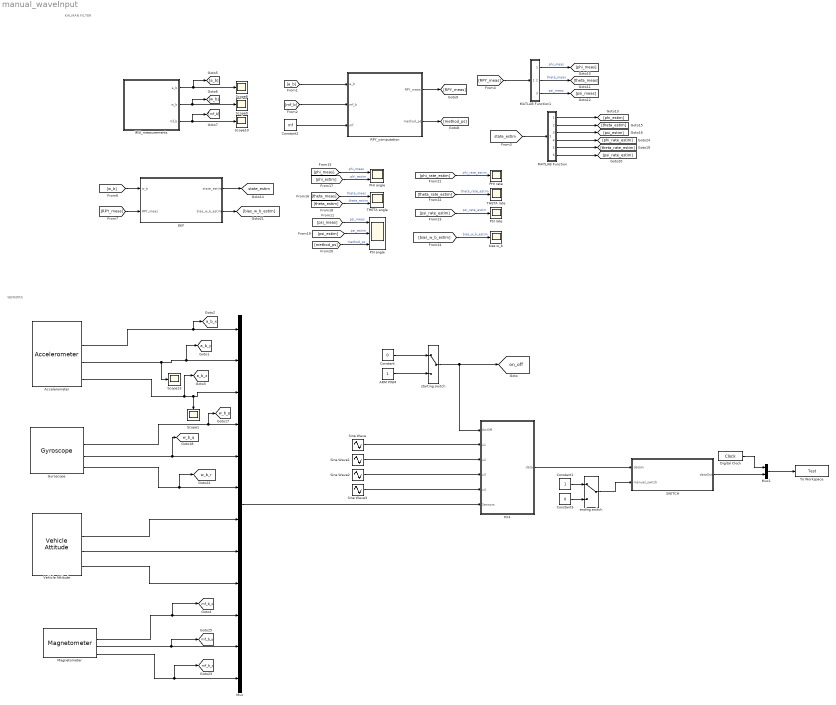
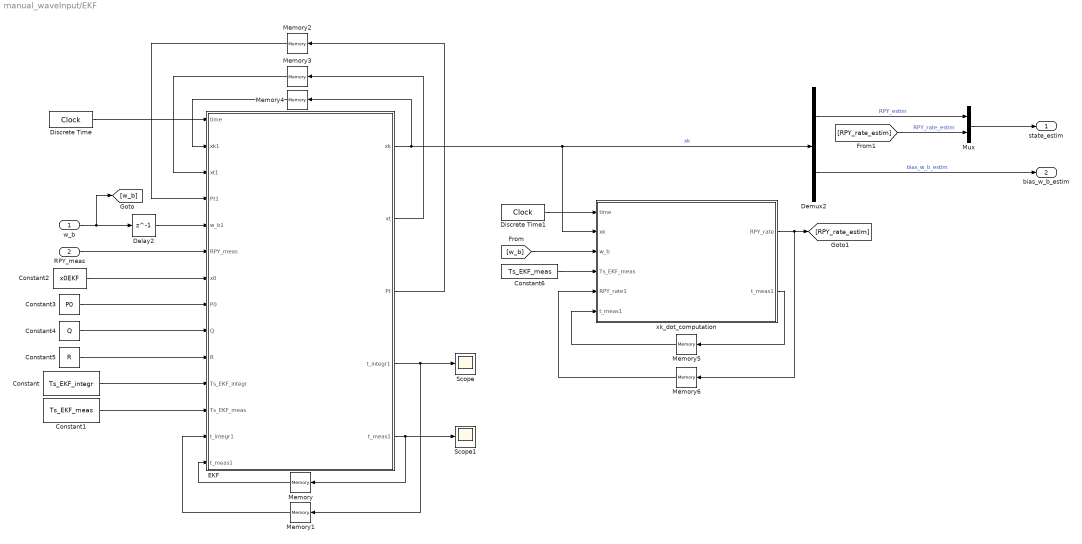
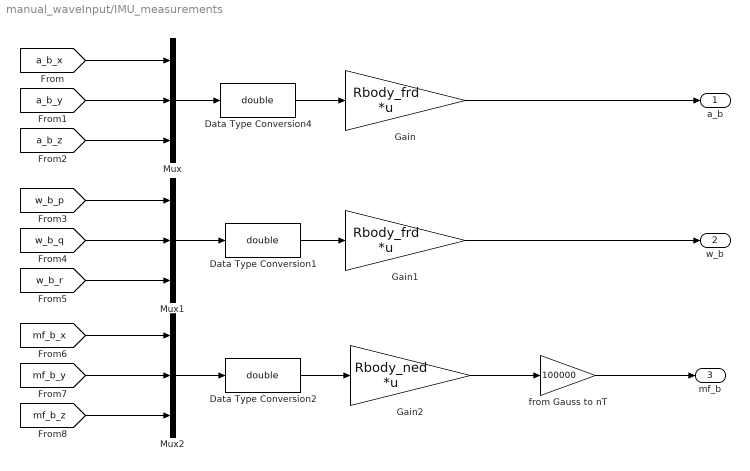
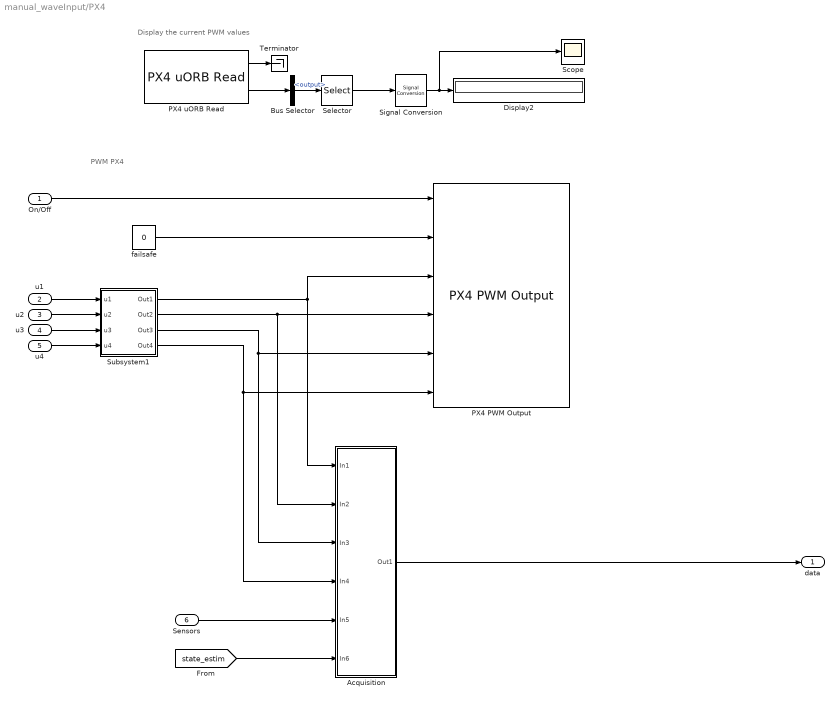
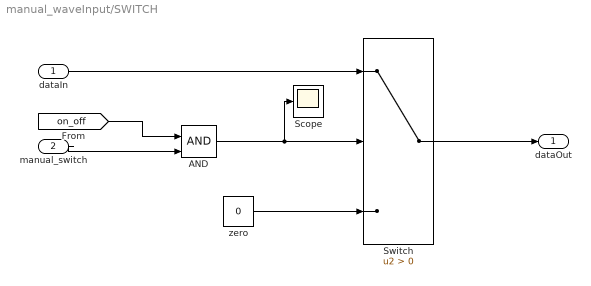
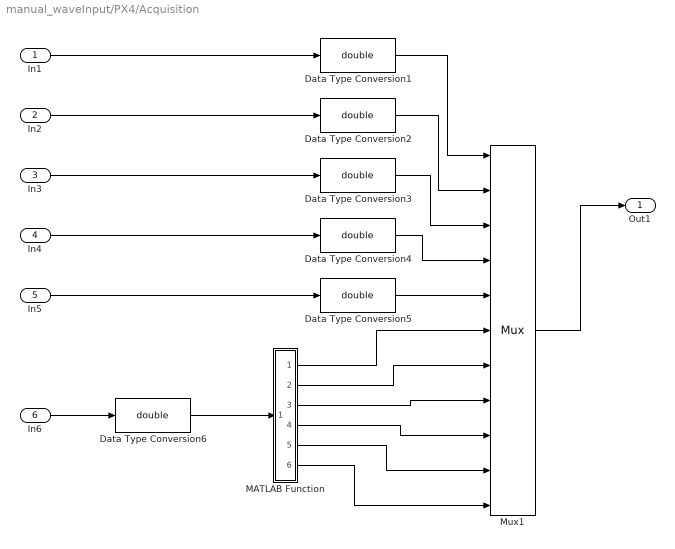
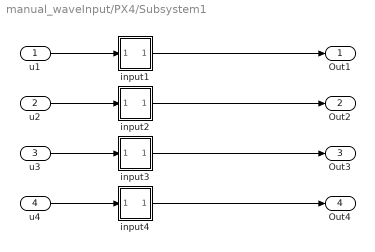
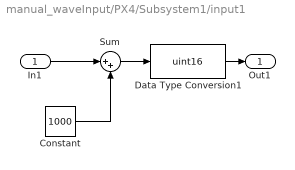
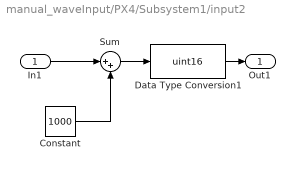
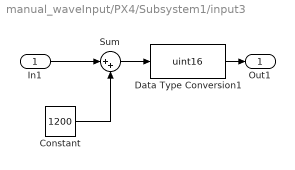
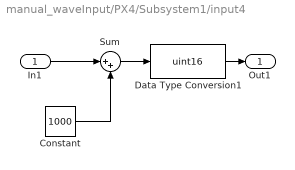
== matlab function manual_waveInput/MATLAB Function1 ==
function [y1,y2,y3] = fcn(u)

y1 = u(1);
y2 = u(2);
y3 = u(3);

== matlab function manual_waveInput/MATLAB Function ==
function [y1,y2,y3,y4,y5,y6] = fcn(u)

y1 = u(1);
y2 = u(2);
y3 = u(3);
y4 = u(4);
y5 = u(5);
y6 = u(6);

== matlab function manual_waveInput/PX4/Acquisition/MATLAB Function ==
function [y1,y2,y3,y4,y5,y6] = fcn(u)

y1 = u(1);
y2 = u(2);
y3 = u(3);
y4 = u(4);
y5 = u(5);
y6 = u(6);

== matlab function manual_waveInput/RPY_computation ==
function [RPY_meas,method_ps]   = RPY_computation(a_b,mf_b,mf)
% description:
% - a_b             = measured linear acceleration in body-frame
% - w_b             = measured angular velocity in body-frame
% - mf_b            = measured magnetic field in body-frame
% - mf              = measured magnetic field in body-inertia
% - a_b_disturbe    = linear velocity measurement-noise
% - w_b_disturbe    = angular velocity measurement-noise
% - mf_b_disturbe   = magnetic field measurement-noise

% -------------------------------------------------------------------------------------------
% observation: the following computation works only if the angles
% phi,theta,psy are withing angles (-pi/2,+pi/2) (this is an open set, pi/2 is excluded)
% -------------------------------------------------------------------------------------------

a_b = -1*a_b;       % need to adjust the sign to use atan2() function correctly
mf_u = mf(3,1);     % magnetic field in up direction (z-dir in inertia frame)

% phi computation
ph_meas = atan2(a_b(2), a_b(3));
sph = sin(ph_meas);
cph = cos(ph_meas);

% theta computation
th_meas = atan2(-a_b(1), (a_b(2)*sph + a_b(3)*cph));
sth = sin(th_meas);
cth = cos(th_meas);

% psi computation
if abs(sin(th_meas)) > 0.1  % sin(th) != 0 
    method_ps = 1;
    ps_meas_numerator   = (sth*cph*mf_b(2) - sth*sph*mf_b(3))/(-sth);       % don't modify
    ps_meas_denominator = (-sph*mf_b(2) - cph*mf_b(3) + cth*mf_u)/(-sth);   % don't modify
    ps_meas = atan2(ps_meas_numerator, ps_meas_denominator);
else                        % sin(th) == 0
    method_ps = 2;
    ps_meas_numerator   = (mf_b(2) - cth*sph*mf_u)*(-cth);
    ps_meas_denominator = cph*mf_b(1);
    ps_meas = atan2(ps_meas_numerator, ps_meas_denominator);
end
RPY_meas = [ph_meas;th_meas;ps_meas];

== matlab function manual_waveInput/EKF/EKF ==
function [xk,xt,Pt,t_integr1,t_meas1] = EKF(time,xk1,xt1,Pt1,w_b1,RPY_meas,x0,P0,Q,R,Ts_EKF_integr,Ts_EKF_meas,t_integr1,t_meas1)

if time == 0
    xk = x0;
    xt = x0;
    Pt = P0;
    t_integr1 = 0;
    t_meas1 = 0;
elseif time - t_integr1 >= Ts_EKF_integr
    wp          =       w_b1(1,1);        % p-dir of angular velocity w
    wq          =       w_b1(2,1);        % q-dir of angular velocity w
    wr          =       w_b1(3,1);        % r-dir of angular velocity w

    phi         =       xt1(1,1);         %  roll angle (rad)
    theta       =       xt1(2,1);         %  pitch angle (rad)
    psi         =       xt1(3,1);         %  yaw angle (rad)  
    bias_wp     =       xt1(4,1);         % bias of p-dir of angular velocity w
    bias_wq     =       xt1(5,1);         % bias of q-dir of angular velocity w
    bias_wr     =       xt1(6,1);         % bias of r-dir of angular velocity w

    cph         =       cos(phi);
    cth         =       cos(theta);
    cps         =       cos(psi);
    sph         =       sin(phi);
    sth         =       sin(theta);
    sps         =       sin(psi);
    tth         =       sth/cth;

    % integration step
    t_integr1 = time;
    Mf = [1,    sph*tth,    cph*tth,    0,  0,  0;
          0,    cph,        -sph,       0,  0,  0;
          0,    sph/cth,    cph/cth,    0,  0,  0;
          0,    0,          0,          1,  0,  0;
          0,    0,          0,          0,  1,  0;
          0,    0,          0,          0,  0,  1;];
    Z1 = [wp-bias_wp; wq-bias_wq; wr-bias_wr; bias_wp; bias_wq; bias_wr;];
    f = Mf*Z1;
    xt = xt1 + Ts_EKF_integr*f;

    A1 = [cph*tth*(wq-bias_wq)-sph*tth*(wr-bias_wr),(sph*(wq-bias_wq)+cph*(wr-bias_wr))/cth^2,  0,  -1, -sph*tth,   -cph*tth;];
    A2 = [-sph*(wq-bias_wq)-cph*(wr-bias_wr),   0,  0,  0,  -cph,   sph;];
    A3 = [cph*(wq-bias_wq)/cth-sph*(wr-bias_wr)/cth, (sth/cth^2)*(sph*(wq-bias_wq)+cph*(wr-bias_wr)),   0,  0,  -sph/cth,   -cph/cth;];
    A4 = [0,    0,  0,  1,  0,  0;];
    A5 = [0,    0,  0,  0,  1,  0;];
    A6 = [0,    0,  0,  0,  0,  1;];
    At1 = [A1; A2; A3; A4; A5; A6;];
    Pt = Pt1 + Ts_EKF_integr*(At1*Pt1 + Pt1*At1' + Q);

    % measurement step
    if time - t_meas1 >= Ts_EKF_meas
        t_meas1 = time;
        Ck = [eye(3),zeros(3,3)];
        Lk = Pt*Ck'/(Ck*Pt*Ck' + R);
        xk = xt + Lk*(RPY_meas - Ck*xt);
        Pk = (eye(6) - Lk*Ck)*Pt;

        xt = xk;    % becomes the new xt1
        Pt = Pk;    % becomes the new Pt1
    else
        xk = xk1;    % xk1
    end
else
    xk = xt1;
    xt = xt1;
    Pt = Pt1;
end
end

== matlab function manual_waveInput/EKF/xk_dot_computation ==
function [RPY_rate,t_meas1] = xk_dot_computation(time,xk,w_b,Ts_EKF_meas,RPY_rate1,t_meas1)
RPY_rate = zeros(3,1);
if time == 0
    t_meas1 = 0;
end
if time - t_meas1 >= Ts_EKF_meas || time == 0
    wp          =       w_b(1,1);        % p-dir of angular velocity w
    wq          =       w_b(2,1);        % q-dir of angular velocity w
    wr          =       w_b(3,1);        % r-dir of angular velocity w

    phi         =       xk(1,1);         %  roll angle (rad)
    theta       =       xk(2,1);         %  pitch angle (rad)
    psi         =       xk(3,1);         %  yaw angle (rad)  
    bias_wp     =       xk(4,1)*0;         % bias of p-dir of angular velocity w
    bias_wq     =       xk(5,1)*0;         % bias of q-dir of angular velocity w
    bias_wr     =       xk(6,1)*0;         % bias of r-dir of angular velocity w

    cph         =       cos(phi);
    cth         =       cos(theta);
    cps         =       cos(psi);
    sph         =       sin(phi);
    sth         =       sin(theta);
    sps         =       sin(psi);
    tth         =       sth/cth;

    % integration step
    t_meas1 = time;
    W_eta = [1,    sph*tth,    cph*tth;
             0,    cph,        -sph;
             0,    sph/cth,    cph/cth;];
    w_b_corrected = [wp-bias_wp; wq-bias_wq; wr-bias_wr;];
    RPY_rate = W_eta*w_b_corrected;
else
    RPY_rate = RPY_rate1;
end
end

//
// Academic License - for use in teaching, academic research, and meeting
// course requirements at degree granting institutions only.  Not for
// government, commercial, or other organizational use.
//
// File: manual_waveInput.cpp
//
// Code generated for Simulink model 'manual_waveInput'.
//
// Model version                  : 1.70
// Simulink Coder version         : 9.9 (R2023a) 19-Nov-2022
// C/C++ source code generated on : Tue Apr  9 15:55:51 2024
//
// Target selection: ert.tlc
// Embedded hardware selection: ARM Compatible->ARM Cortex
// Code generation objectives: Unspecified
// Validation result: Not run
//
#include "manual_waveInput.h"
#include "manual_waveInput_types.h"
#include "rtwtypes.h"
#include "manual_waveInput_private.h"
#include <math.h>
#include <string.h>

extern "C"
{

#include "rt_nonfinite.h"

}

#include "rt_defines.h"

// Block signals (default storage)
B_manual_waveInput_T manual_waveInput_B;

// Block states (default storage)
DW_manual_waveInput_T manual_waveInput_DW;

// Real-time model
RT_MODEL_manual_waveInput_T manual_waveInput_M_ = RT_MODEL_manual_waveInput_T();
RT_MODEL_manual_waveInput_T *const manual_waveInput_M = &manual_waveInput_M_;

// Forward declaration for local functions
static void manual_waveInp_SystemCore_setup(px4_internal_block_PWM_manual_T *obj,
  boolean_T varargin_1, boolean_T varargin_2);
real_T rt_atan2d_snf(real_T u0, real_T u1)
{
  real_T y;
  if (rtIsNaN(u0) || rtIsNaN(u1)) {
    y = (rtNaN);
  } else if (rtIsInf(u0) && rtIsInf(u1)) {
    int32_T tmp;
    int32_T tmp_0;
    if (u0 > 0.0) {
      tmp = 1;
    } else {
      tmp = -1;
    }

    if (u1 > 0.0) {
      tmp_0 = 1;
    } else {
      tmp_0 = -1;
    }

    y = atan2(static_cast<real_T>(tmp), static_cast<real_T>(tmp_0));
  } else if (u1 == 0.0) {
    if (u0 > 0.0) {
      y = RT_PI / 2.0;
    } else if (u0 < 0.0) {
      y = -(RT_PI / 2.0);
    } else {
      y = 0.0;
    }
  } else {
    y = atan2(u0, u1);
  }

  return y;
}

static void manual_waveInp_SystemCore_setup(px4_internal_block_PWM_manual_T *obj,
  boolean_T varargin_1, boolean_T varargin_2)
{
  uint16_T status;
  obj->isSetupComplete = false;
  obj->isInitialized = 1;
  obj->isMain = true;
  obj->pwmDevObj = MW_PWM_OUTPUT_MAIN_DEVICE_PATH;
  status = pwm_open(&obj->pwmDevHandler, obj->pwmDevObj,
                    &obj->actuatorAdvertiseObj, &obj->armAdvertiseObj);
  obj->errorStatus = static_cast<uint16_T>(obj->errorStatus | status);
  obj->servoCount = 0;
  status = pwm_getServoCount(&obj->pwmDevHandler, &obj->servoCount);
  obj->errorStatus = static_cast<uint16_T>(obj->errorStatus | status);
  if (varargin_1) {
    status = pwm_arm(&obj->pwmDevHandler, &obj->armAdvertiseObj);
    obj->isArmed = true;
  } else {
    status = pwm_disarm(&obj->pwmDevHandler, &obj->armAdvertiseObj);
    obj->isArmed = false;
  }

  obj->errorStatus = static_cast<uint16_T>(obj->errorStatus | status);
  status = pwm_setPWMRate(&obj->pwmDevHandler, obj->isMain);
  obj->errorStatus = static_cast<uint16_T>(obj->errorStatus | status);
  obj->channelMask = 15;
  status = pwm_setChannelMask(&obj->pwmDevHandler, obj->channelMask);
  obj->errorStatus = static_cast<uint16_T>(obj->errorStatus | status);
  status = pwm_setFailsafePWM(&obj->pwmDevHandler, obj->servoCount,
    obj->channelMask, obj->isMain);
  obj->errorStatus = static_cast<uint16_T>(obj->errorStatus | status);
  status = pwm_setDisarmedPWM(&obj->pwmDevHandler, obj->servoCount,
    obj->channelMask, obj->isMain, &obj->actuatorAdvertiseObj);
  obj->errorStatus = static_cast<uint16_T>(obj->errorStatus | status);
  if (obj->isMain) {
    status = pwm_forceFailsafe(&obj->pwmDevHandler, static_cast<int32_T>
      (varargin_2));
    obj->errorStatus = static_cast<uint16_T>(obj->errorStatus | status);
    status = pwm_forceTerminateFailsafe(&obj->pwmDevHandler, 0);
    obj->errorStatus = static_cast<uint16_T>(obj->errorStatus | status);
  }

  obj->isSetupComplete = true;
}

// Model step function
void manual_waveInput_step(void)
{
  int32_T Lk_tmp;
  int32_T Lk_tmp_0;
  int32_T Lk_tmp_1;
  int32_T r1;
  int32_T r2;
  int32_T r3;
  int32_T rtemp;
  uint16_T rtb_DataTypeConversion1_a;
  uint16_T rtb_DataTypeConversion1_fx;
  uint16_T rtb_DataTypeConversion1_j;
  uint16_T rtb_DataTypeConversion1_n;
  int8_T xt_tmp[6];
  int8_T xt_tmp_0[6];
  boolean_T rtb_startingswitch;
  boolean_T tmp;
  static const int8_T b[6] = { 0, 0, 0, 1, 0, 0 };

  static const int8_T c[6] = { 0, 0, 0, 0, 1, 0 };

  static const int8_T d[6] = { 0, 0, 0, 0, 0, 1 };

  static const int8_T e[18] = { 1, 0, 0, 0, 0, 0, 0, 1, 0, 0, 0, 0, 0, 0, 1, 0,
    0, 0 };

  static const int8_T b_b[18] = { 1, 0, 0, 0, 1, 0, 0, 0, 1, 0, 0, 0, 0, 0, 0, 0,
    0, 0 };

  // Reset subsysRan breadcrumbs
  srClearBC(manual_waveInput_DW.EnabledSubsystem_SubsysRanBC_c);

  // Reset subsysRan breadcrumbs
  srClearBC(manual_waveInput_DW.EnabledSubsystem_SubsysRanBC_f);

  // Reset subsysRan breadcrumbs
  srClearBC(manual_waveInput_DW.EnabledSubsystem_SubsysRanBC_n);

  // Reset subsysRan breadcrumbs
  srClearBC(manual_waveInput_DW.EnabledSubsystem_SubsysRanBC_k);

  // Reset subsysRan breadcrumbs
  srClearBC(manual_waveInput_DW.EnabledSubsystem_SubsysRanBC);

  // DigitalClock: '<S2>/Discrete Time' incorporates:
  //   DigitalClock: '<Root>/Digital Clock'

  manual_waveInput_B.DigitalClock = manual_waveInput_M->Timing.taskTime0;

  // MATLABSystem: '<S12>/SourceBlock'
  rtb_startingswitch = uORB_read_step(manual_waveInput_DW.obj_a.orbMetadataObj,
    &manual_waveInput_DW.obj_a.eventStructObj,
    &manual_waveInput_B.b_varargout_2_c, false, 1.0);

  // Outputs for Enabled SubSystem: '<S12>/Enabled Subsystem' incorporates:
  //   EnablePort: '<S13>/Enable'

  if (rtb_startingswitch) {
    // SignalConversion generated from: '<S13>/In1'
    manual_waveInput_B.In1_lx = manual_waveInput_B.b_varargout_2_c;
    srUpdateBC(manual_waveInput_DW.EnabledSubsystem_SubsysRanBC_c);
  }

  // End of MATLABSystem: '<S12>/SourceBlock'
  // End of Outputs for SubSystem: '<S12>/Enabled Subsystem'

  // SignalConversion generated from: '<S1>/Bus Selector'
  manual_waveInput_B.z = manual_waveInput_B.In1_lx.z;

  // SignalConversion generated from: '<S1>/Bus Selector'
  manual_waveInput_B.y = manual_waveInput_B.In1_lx.y;
  for (rtemp = 0; rtemp < 3; rtemp++) {
    // Gain: '<S4>/Gain' incorporates:
    //   DataTypeConversion: '<S4>/Data Type Conversion4'

    manual_waveInput_B.Gain[rtemp] = (manual_waveInput_P.Rbody_frd[rtemp + 3] *
      manual_waveInput_B.y + manual_waveInput_P.Rbody_frd[rtemp] *
      manual_waveInput_B.In1_lx.x) + manual_waveInput_P.Rbody_frd[rtemp + 6] *
      manual_waveInput_B.z;
  }

  // MATLABSystem: '<S18>/SourceBlock'
  rtb_startingswitch = uORB_read_step(manual_waveInput_DW.obj_d.orbMetadataObj,
    &manual_waveInput_DW.obj_d.eventStructObj,
    &manual_waveInput_B.b_varargout_2_p, false, 1.0);

  // Outputs for Enabled SubSystem: '<S18>/Enabled Subsystem' incorporates:
  //   EnablePort: '<S19>/Enable'

  if (rtb_startingswitch) {
    // SignalConversion generated from: '<S19>/In1'
    manual_waveInput_B.In1_o = manual_waveInput_B.b_varargout_2_p;
    srUpdateBC(manual_waveInput_DW.EnabledSubsystem_SubsysRanBC_n);
  }

  // End of MATLABSystem: '<S18>/SourceBlock'
  // End of Outputs for SubSystem: '<S18>/Enabled Subsystem'
  for (rtemp = 0; rtemp < 3; rtemp++) {
    // Gain: '<S4>/from Gauss to nT' incorporates:
    //   DataTypeConversion: '<S4>/Data Type Conversion2'
    //   Gain: '<S4>/Gain2'

    manual_waveInput_B.fromGausstonT[rtemp] =
      ((manual_waveInput_P.Rbody_ned[rtemp + 3] * manual_waveInput_B.In1_o.y +
        manual_waveInput_P.Rbody_ned[rtemp] * manual_waveInput_B.In1_o.x) +
       manual_waveInput_P.Rbody_ned[rtemp + 6] * manual_waveInput_B.In1_o.z) *
      manual_waveInput_P.fromGausstonT_Gain;

    // MATLAB Function: '<Root>/RPY_computation'
    manual_waveInput_B.RPY_meas[rtemp] = -manual_waveInput_B.Gain[rtemp];
  }

  // MATLAB Function: '<Root>/RPY_computation' incorporates:
  //   Constant: '<Root>/Constant2'

  manual_waveInput_B.y1_k = rt_atan2d_snf(manual_waveInput_B.RPY_meas[1],
    manual_waveInput_B.RPY_meas[2]);
  manual_waveInput_B.sph = sin(manual_waveInput_B.y1_k);
  manual_waveInput_B.cph = cos(manual_waveInput_B.y1_k);
  manual_waveInput_B.y2_n = rt_atan2d_snf(-manual_waveInput_B.RPY_meas[0],
    manual_waveInput_B.RPY_meas[1] * manual_waveInput_B.sph +
    manual_waveInput_B.RPY_meas[2] * manual_waveInput_B.cph);
  manual_waveInput_B.sth = sin(manual_waveInput_B.y2_n);
  manual_waveInput_B.cth = cos(manual_waveInput_B.y2_n);
  if (fabs(manual_waveInput_B.sth) > 0.1) {
    manual_waveInput_B.method_ps = 1.0;
    manual_waveInput_B.y3_h = rt_atan2d_snf((manual_waveInput_B.sth *
      manual_waveInput_B.cph * manual_waveInput_B.fromGausstonT[1] -
      manual_waveInput_B.sth * manual_waveInput_B.sph *
      manual_waveInput_B.fromGausstonT[2]) / -manual_waveInput_B.sth,
      ((-manual_waveInput_B.sph * manual_waveInput_B.fromGausstonT[1] -
        manual_waveInput_B.cph * manual_waveInput_B.fromGausstonT[2]) +
       manual_waveInput_B.cth * manual_waveInput_P.mf[2]) /
      -manual_waveInput_B.sth);
  } else {
    manual_waveInput_B.method_ps = 2.0;
    manual_waveInput_B.y3_h = rt_atan2d_snf((manual_waveInput_B.fromGausstonT[1]
      - manual_waveInput_B.cth * manual_waveInput_B.sph * manual_waveInput_P.mf
      [2]) * -manual_waveInput_B.cth, manual_waveInput_B.cph *
      manual_waveInput_B.fromGausstonT[0]);
  }

  manual_waveInput_B.RPY_meas[0] = manual_waveInput_B.y1_k;
  manual_waveInput_B.RPY_meas[1] = manual_waveInput_B.y2_n;
  manual_waveInput_B.RPY_meas[2] = manual_waveInput_B.y3_h;

  // MATLAB Function: '<S2>/EKF' incorporates:
  //   Constant: '<S2>/Constant'
  //   Constant: '<S2>/Constant1'
  //   Constant: '<S2>/Constant2'
  //   Constant: '<S2>/Constant3'
  //   Constant: '<S2>/Constant4'
  //   Constant: '<S2>/Constant5'
  //   Delay: '<S2>/Delay2'
  //   DigitalClock: '<S2>/Discrete Time'
  //   Memory: '<S2>/Memory'
  //   Memory: '<S2>/Memory1'
  //   Memory: '<S2>/Memory2'
  //   Memory: '<S2>/Memory3'
  //   Memory: '<S2>/Memory4'

  manual_waveInput_B.t_integr1 = manual_waveInput_DW.Memory1_PreviousInput;
  manual_waveInput_B.t_meas1_d = manual_waveInput_DW.Memory_PreviousInput;
  if (manual_waveInput_B.DigitalClock == 0.0) {
    for (rtemp = 0; rtemp < 6; rtemp++) {
      manual_waveInput_B.xk[rtemp] = manual_waveInput_P.x0EKF[rtemp];
      manual_waveInput_B.xt[rtemp] = manual_waveInput_P.x0EKF[rtemp];
    }

    memcpy(&manual_waveInput_DW.Memory2_PreviousInput[0],
           &manual_waveInput_P.P0[0], 36U * sizeof(real_T));
    manual_waveInput_B.t_integr1 = 0.0;
    manual_waveInput_B.t_meas1_d = 0.0;
  } else if (manual_waveInput_B.DigitalClock - manual_waveInput_B.t_integr1 >=
             manual_waveInput_P.Ts_EKF_integr) {
    manual_waveInput_B.cph = cos(manual_waveInput_DW.Memory3_PreviousInput[0]);
    manual_waveInput_B.cth = cos(manual_waveInput_DW.Memory3_PreviousInput[1]);
    manual_waveInput_B.sph = sin(manual_waveInput_DW.Memory3_PreviousInput[0]);
    manual_waveInput_B.sth = sin(manual_waveInput_DW.Memory3_PreviousInput[1]);
    manual_waveInput_B.tth = manual_waveInput_B.sth / manual_waveInput_B.cth;
    manual_waveInput_B.t_integr1 = manual_waveInput_B.DigitalClock;
    manual_waveInput_B.At1_c[0] = 1.0;
    manual_waveInput_B.At1_tmp = manual_waveInput_B.sph * manual_waveInput_B.tth;
    manual_waveInput_B.At1_c[6] = manual_waveInput_B.At1_tmp;
    manual_waveInput_B.At1_tmp_g = manual_waveInput_B.cph *
      manual_waveInput_B.tth;
    manual_waveInput_B.At1_c[12] = manual_waveInput_B.At1_tmp_g;
    manual_waveInput_B.At1_c[18] = 0.0;
    manual_waveInput_B.At1_c[24] = 0.0;
    manual_waveInput_B.At1_c[30] = 0.0;
    manual_waveInput_B.At1_c[1] = 0.0;
    manual_waveInput_B.At1_c[7] = manual_waveInput_B.cph;
    manual_waveInput_B.At1_c[13] = -manual_waveInput_B.sph;
    manual_waveInput_B.At1_c[19] = 0.0;
    manual_waveInput_B.At1_c[25] = 0.0;
    manual_waveInput_B.At1_c[31] = 0.0;
    manual_waveInput_B.At1_c[2] = 0.0;
    manual_waveInput_B.At1_c[8] = manual_waveInput_B.sph /
      manual_waveInput_B.cth;
    manual_waveInput_B.At1_c[14] = manual_waveInput_B.cph /
      manual_waveInput_B.cth;
    manual_waveInput_B.At1_c[20] = 0.0;
    manual_waveInput_B.At1_c[26] = 0.0;
    manual_waveInput_B.At1_c[32] = 0.0;
    for (rtemp = 0; rtemp < 6; rtemp++) {
      r1 = b[rtemp];
      manual_waveInput_B.xt_tmp[rtemp] = r1;
      r2 = c[rtemp];
      xt_tmp[rtemp] = static_cast<int8_T>(r2);
      r3 = d[rtemp];
      xt_tmp_0[rtemp] = static_cast<int8_T>(r3);
      manual_waveInput_B.At1_c[6 * rtemp + 3] = r1;
      manual_waveInput_B.At1_c[6 * rtemp + 4] = r2;
      manual_waveInput_B.At1_c[6 * rtemp + 5] = r3;
    }

    manual_waveInput_B.dv[0] = manual_waveInput_DW.Delay2_DSTATE[0] -
      manual_waveInput_DW.Memory3_PreviousInput[3];
    manual_waveInput_B.d = manual_waveInput_DW.Delay2_DSTATE[1] -
      manual_waveInput_DW.Memory3_PreviousInput[4];
    manual_waveInput_B.dv[1] = manual_waveInput_B.d;
    manual_waveInput_B.d1 = manual_waveInput_DW.Delay2_DSTATE[2] -
      manual_waveInput_DW.Memory3_PreviousInput[5];
    manual_waveInput_B.dv[2] = manual_waveInput_B.d1;
    manual_waveInput_B.dv[3] = manual_waveInput_DW.Memory3_PreviousInput[3];
    manual_waveInput_B.dv[4] = manual_waveInput_DW.Memory3_PreviousInput[4];
    manual_waveInput_B.dv[5] = manual_waveInput_DW.Memory3_PreviousInput[5];
    for (rtemp = 0; rtemp < 6; rtemp++) {
      manual_waveInput_B.At1_tmp_g1 = 0.0;
      for (r1 = 0; r1 < 6; r1++) {
        manual_waveInput_B.At1_tmp_g1 += manual_waveInput_B.At1_c[6 * r1 + rtemp]
          * manual_waveInput_B.dv[r1];
      }

      manual_waveInput_B.xt[rtemp] = manual_waveInput_P.Ts_EKF_integr *
        manual_waveInput_B.At1_tmp_g1 +
        manual_waveInput_DW.Memory3_PreviousInput[rtemp];
    }

    manual_waveInput_B.At1[0] = manual_waveInput_B.At1_tmp_g *
      manual_waveInput_B.d - manual_waveInput_B.At1_tmp * manual_waveInput_B.d1;
    manual_waveInput_B.At1_tmp = manual_waveInput_B.d1 * manual_waveInput_B.cph;
    manual_waveInput_B.At1_tmp_g = manual_waveInput_B.d * manual_waveInput_B.sph
      + manual_waveInput_B.At1_tmp;
    manual_waveInput_B.At1_tmp_g1 = manual_waveInput_B.cth *
      manual_waveInput_B.cth;
    manual_waveInput_B.At1[6] = manual_waveInput_B.At1_tmp_g /
      manual_waveInput_B.At1_tmp_g1;
    manual_waveInput_B.At1[12] = 0.0;
    manual_waveInput_B.At1[18] = -1.0;
    manual_waveInput_B.At1[24] = -manual_waveInput_B.sph *
      manual_waveInput_B.tth;
    manual_waveInput_B.At1[30] = -manual_waveInput_B.cph *
      manual_waveInput_B.tth;
    manual_waveInput_B.At1[1] = manual_waveInput_B.d * -manual_waveInput_B.sph -
      manual_waveInput_B.At1_tmp;
    manual_waveInput_B.At1[7] = 0.0;
    manual_waveInput_B.At1[13] = 0.0;
    manual_waveInput_B.At1[19] = 0.0;
    manual_waveInput_B.At1[25] = -manual_waveInput_B.cph;
    manual_waveInput_B.At1[31] = manual_waveInput_B.sph;
    manual_waveInput_B.At1[2] = manual_waveInput_B.d * manual_waveInput_B.cph /
      manual_waveInput_B.cth - manual_waveInput_B.d1 * manual_waveInput_B.sph /
      manual_waveInput_B.cth;
    manual_waveInput_B.At1[8] = manual_waveInput_B.sth /
      manual_waveInput_B.At1_tmp_g1 * manual_waveInput_B.At1_tmp_g;
    manual_waveInput_B.At1[14] = 0.0;
    manual_waveInput_B.At1[20] = 0.0;
    manual_waveInput_B.At1[26] = -manual_waveInput_B.sph /
      manual_waveInput_B.cth;
    manual_waveInput_B.At1[32] = -manual_waveInput_B.cph /
      manual_waveInput_B.cth;
    for (rtemp = 0; rtemp < 6; rtemp++) {
      manual_waveInput_B.At1[6 * rtemp + 3] = manual_waveInput_B.xt_tmp[rtemp];
      manual_waveInput_B.At1[6 * rtemp + 4] = xt_tmp[rtemp];
      manual_waveInput_B.At1[6 * rtemp + 5] = xt_tmp_0[rtemp];
    }

    for (rtemp = 0; rtemp < 6; rtemp++) {
      for (r1 = 0; r1 < 6; r1++) {
        manual_waveInput_B.sph = 0.0;
        manual_waveInput_B.At1_tmp = 0.0;
        for (r2 = 0; r2 < 6; r2++) {
          r3 = 6 * r2 + rtemp;
          manual_waveInput_B.sph += manual_waveInput_DW.Memory2_PreviousInput[6 *
            r1 + r2] * manual_waveInput_B.At1[r3];
          manual_waveInput_B.At1_tmp += manual_waveInput_B.At1[6 * r2 + r1] *
            manual_waveInput_DW.Memory2_PreviousInput[r3];
        }

        r2 = 6 * r1 + rtemp;
        manual_waveInput_B.At1_c[r2] = manual_waveInput_B.At1_tmp;
        manual_waveInput_B.At1_m[r2] = manual_waveInput_B.sph;
      }
    }

    for (rtemp = 0; rtemp < 36; rtemp++) {
      manual_waveInput_DW.Memory2_PreviousInput[rtemp] +=
        ((manual_waveInput_B.At1_m[rtemp] + manual_waveInput_B.At1_c[rtemp]) +
         manual_waveInput_P.Q[rtemp]) * manual_waveInput_P.Ts_EKF_integr;
    }

    if (manual_waveInput_B.DigitalClock - manual_waveInput_B.t_meas1_d >=
        manual_waveInput_P.Ts_EKF_meas) {
      manual_waveInput_B.t_meas1_d = manual_waveInput_B.DigitalClock;
      for (rtemp = 0; rtemp < 18; rtemp++) {
        manual_waveInput_B.Lk[rtemp] = e[rtemp];
      }

      for (rtemp = 0; rtemp < 3; rtemp++) {
        for (r1 = 0; r1 < 6; r1++) {
          manual_waveInput_B.sph = 0.0;
          for (r2 = 0; r2 < 6; r2++) {
            manual_waveInput_B.sph += manual_waveInput_DW.Memory2_PreviousInput
              [6 * r2 + r1] * manual_waveInput_B.Lk[6 * rtemp + r2];
          }

          manual_waveInput_B.B[r1 + 6 * rtemp] = manual_waveInput_B.sph;
        }
      }

      for (rtemp = 0; rtemp < 18; rtemp++) {
        manual_waveInput_B.A_tmp_f[rtemp] = b_b[rtemp];
      }

      for (rtemp = 0; rtemp < 3; rtemp++) {
        for (r1 = 0; r1 < 6; r1++) {
          manual_waveInput_B.sph = 0.0;
          for (r2 = 0; r2 < 6; r2++) {
            manual_waveInput_B.sph += static_cast<real_T>
              (manual_waveInput_B.A_tmp_f[3 * r2 + rtemp]) *
              manual_waveInput_DW.Memory2_PreviousInput[6 * r1 + r2];
          }

          manual_waveInput_B.A_tmp[rtemp + 3 * r1] = manual_waveInput_B.sph;
        }

        for (r1 = 0; r1 < 3; r1++) {
          manual_waveInput_B.At1_tmp = 0.0;
          for (r2 = 0; r2 < 6; r2++) {
            manual_waveInput_B.At1_tmp += manual_waveInput_B.A_tmp[3 * r2 +
              rtemp] * manual_waveInput_B.Lk[6 * r1 + r2];
          }

          r2 = 3 * r1 + rtemp;
          manual_waveInput_B.A[r2] = manual_waveInput_P.R[r2] +
            manual_waveInput_B.At1_tmp;
        }
      }

      r1 = 0;
      r2 = 1;
      r3 = 2;
      manual_waveInput_B.sph = fabs(manual_waveInput_B.A[0]);
      manual_waveInput_B.cph = fabs(manual_waveInput_B.A[1]);
      if (manual_waveInput_B.cph > manual_waveInput_B.sph) {
        manual_waveInput_B.sph = manual_waveInput_B.cph;
        r1 = 1;
        r2 = 0;
      }

      if (fabs(manual_waveInput_B.A[2]) > manual_waveInput_B.sph) {
        r1 = 2;
        r2 = 1;
        r3 = 0;
      }

      manual_waveInput_B.A[r2] /= manual_waveInput_B.A[r1];
      manual_waveInput_B.A[r3] /= manual_waveInput_B.A[r1];
      manual_waveInput_B.A[r2 + 3] -= manual_waveInput_B.A[r1 + 3] *
        manual_waveInput_B.A[r2];
      manual_waveInput_B.A[r3 + 3] -= manual_waveInput_B.A[r1 + 3] *
        manual_waveInput_B.A[r3];
      manual_waveInput_B.A[r2 + 6] -= manual_waveInput_B.A[r1 + 6] *
        manual_waveInput_B.A[r2];
      manual_waveInput_B.A[r3 + 6] -= manual_waveInput_B.A[r1 + 6] *
        manual_waveInput_B.A[r3];
      if (fabs(manual_waveInput_B.A[r3 + 3]) > fabs(manual_waveInput_B.A[r2 + 3]))
      {
        rtemp = r2;
        r2 = r3;
        r3 = rtemp;
      }

      manual_waveInput_B.A[r3 + 3] /= manual_waveInput_B.A[r2 + 3];
      manual_waveInput_B.A[r3 + 6] -= manual_waveInput_B.A[r3 + 3] *
        manual_waveInput_B.A[r2 + 6];
      for (rtemp = 0; rtemp < 6; rtemp++) {
        Lk_tmp = 6 * r1 + rtemp;
        manual_waveInput_B.Lk[Lk_tmp] = manual_waveInput_B.B[rtemp] /
          manual_waveInput_B.A[r1];
        Lk_tmp_0 = 6 * r2 + rtemp;
        manual_waveInput_B.Lk[Lk_tmp_0] = manual_waveInput_B.B[rtemp + 6] -
          manual_waveInput_B.A[r1 + 3] * manual_waveInput_B.Lk[Lk_tmp];
        Lk_tmp_1 = 6 * r3 + rtemp;
        manual_waveInput_B.Lk[Lk_tmp_1] = manual_waveInput_B.B[rtemp + 12] -
          manual_waveInput_B.A[r1 + 6] * manual_waveInput_B.Lk[Lk_tmp];
        manual_waveInput_B.Lk[Lk_tmp_0] /= manual_waveInput_B.A[r2 + 3];
        manual_waveInput_B.Lk[Lk_tmp_1] -= manual_waveInput_B.A[r2 + 6] *
          manual_waveInput_B.Lk[Lk_tmp_0];
        manual_waveInput_B.Lk[Lk_tmp_1] /= manual_waveInput_B.A[r3 + 6];
        manual_waveInput_B.Lk[Lk_tmp_0] -= manual_waveInput_B.A[r3 + 3] *
          manual_waveInput_B.Lk[Lk_tmp_1];
        manual_waveInput_B.Lk[Lk_tmp] -= manual_waveInput_B.Lk[Lk_tmp_1] *
          manual_waveInput_B.A[r3];
        manual_waveInput_B.Lk[Lk_tmp] -= manual_waveInput_B.Lk[Lk_tmp_0] *
          manual_waveInput_B.A[r2];
      }

      for (rtemp = 0; rtemp < 3; rtemp++) {
        manual_waveInput_B.At1_tmp = 0.0;
        for (r1 = 0; r1 < 6; r1++) {
          manual_waveInput_B.At1_tmp += static_cast<real_T>
            (manual_waveInput_B.A_tmp_f[3 * r1 + rtemp]) *
            manual_waveInput_B.xt[r1];
        }

        manual_waveInput_B.RPY_meas_c[rtemp] = manual_waveInput_B.RPY_meas[rtemp]
          - manual_waveInput_B.At1_tmp;
      }

      manual_waveInput_B.sph = manual_waveInput_B.RPY_meas_c[1];
      manual_waveInput_B.cph = manual_waveInput_B.RPY_meas_c[0];
      manual_waveInput_B.cth = manual_waveInput_B.RPY_meas_c[2];
      for (rtemp = 0; rtemp < 6; rtemp++) {
        manual_waveInput_B.xk[rtemp] = ((manual_waveInput_B.Lk[rtemp + 6] *
          manual_waveInput_B.sph + manual_waveInput_B.Lk[rtemp] *
          manual_waveInput_B.cph) + manual_waveInput_B.Lk[rtemp + 12] *
          manual_waveInput_B.cth) + manual_waveInput_B.xt[rtemp];
      }

      memset(&manual_waveInput_B.At1[0], 0, 36U * sizeof(real_T));
      for (rtemp = 0; rtemp < 6; rtemp++) {
        manual_waveInput_B.At1[rtemp + 6 * rtemp] = 1.0;
      }

      for (rtemp = 0; rtemp < 6; rtemp++) {
        manual_waveInput_B.sph = manual_waveInput_B.Lk[rtemp + 6];
        manual_waveInput_B.cph = manual_waveInput_B.Lk[rtemp];
        manual_waveInput_B.cth = manual_waveInput_B.Lk[rtemp + 12];
        for (r1 = 0; r1 < 6; r1++) {
          r3 = 6 * r1 + rtemp;
          manual_waveInput_B.At1_m[r3] = manual_waveInput_B.At1[r3] - ((
            static_cast<real_T>(manual_waveInput_B.A_tmp_f[3 * r1 + 1]) *
            manual_waveInput_B.sph + static_cast<real_T>
            (manual_waveInput_B.A_tmp_f[3 * r1]) * manual_waveInput_B.cph) +
            static_cast<real_T>(manual_waveInput_B.A_tmp_f[3 * r1 + 2]) *
            manual_waveInput_B.cth);
        }

        for (r1 = 0; r1 < 6; r1++) {
          manual_waveInput_B.sph = 0.0;
          for (r2 = 0; r2 < 6; r2++) {
            manual_waveInput_B.sph += manual_waveInput_B.At1_m[6 * r2 + rtemp] *
              manual_waveInput_DW.Memory2_PreviousInput[6 * r1 + r2];
          }

          manual_waveInput_B.At1_c[rtemp + 6 * r1] = manual_waveInput_B.sph;
        }
      }

      memcpy(&manual_waveInput_DW.Memory2_PreviousInput[0],
             &manual_waveInput_B.At1_c[0], 36U * sizeof(real_T));
      for (rtemp = 0; rtemp < 6; rtemp++) {
        manual_waveInput_B.xt[rtemp] = manual_waveInput_B.xk[rtemp];
      }
    } else {
      for (rtemp = 0; rtemp < 6; rtemp++) {
        manual_waveInput_B.xk[rtemp] =
          manual_waveInput_DW.Memory4_PreviousInput[rtemp];
      }
    }
  } else {
    for (rtemp = 0; rtemp < 6; rtemp++) {
      manual_waveInput_B.xk[rtemp] =
        manual_waveInput_DW.Memory3_PreviousInput[rtemp];
      manual_waveInput_B.xt[rtemp] =
        manual_waveInput_DW.Memory3_PreviousInput[rtemp];
    }
  }

  // End of MATLAB Function: '<S2>/EKF'

  // Sin: '<Root>/Sine Wave' incorporates:
  //   DigitalClock: '<S2>/Discrete Time'

  if (manual_waveInput_DW.systemEnable != 0) {
    manual_waveInput_B.sph = manual_waveInput_P.SineWave_Freq *
      manual_waveInput_B.DigitalClock;
    manual_waveInput_DW.lastSin = sin(manual_waveInput_B.sph);
    manual_waveInput_DW.lastCos = cos(manual_waveInput_B.sph);
    manual_waveInput_DW.systemEnable = 0;
  }

  // DataTypeConversion: '<S25>/Data Type Conversion1' incorporates:
  //   Constant: '<S25>/Constant'
  //   Sin: '<Root>/Sine Wave'
  //   Sum: '<S25>/Sum'

  manual_waveInput_B.At1_tmp = floor((((manual_waveInput_DW.lastSin *
    manual_waveInput_P.SineWave_PCos + manual_waveInput_DW.lastCos *
    manual_waveInput_P.SineWave_PSin) * manual_waveInput_P.SineWave_HCos +
    (manual_waveInput_DW.lastCos * manual_waveInput_P.SineWave_PCos -
     manual_waveInput_DW.lastSin * manual_waveInput_P.SineWave_PSin) *
    manual_waveInput_P.SineWave_Hsin) * manual_waveInput_P.SineWave_Amp +
    manual_waveInput_P.SineWave_Bias) + manual_waveInput_P.Constant_Value_ah);
  if (rtIsNaN(manual_waveInput_B.At1_tmp) || rtIsInf(manual_waveInput_B.At1_tmp))
  {
    manual_waveInput_B.At1_tmp = 0.0;
  } else {
    manual_waveInput_B.At1_tmp = fmod(manual_waveInput_B.At1_tmp, 65536.0);
  }

  rtb_DataTypeConversion1_n = static_cast<uint16_T>(manual_waveInput_B.At1_tmp <
    0.0 ? static_cast<int32_T>(static_cast<uint16_T>(-static_cast<int16_T>(
    static_cast<uint16_T>(-manual_waveInput_B.At1_tmp)))) : static_cast<int32_T>
    (static_cast<uint16_T>(manual_waveInput_B.At1_tmp)));

  // End of DataTypeConversion: '<S25>/Data Type Conversion1'

  // Sin: '<Root>/Sine Wave1' incorporates:
  //   DigitalClock: '<S2>/Discrete Time'

  if (manual_waveInput_DW.systemEnable_o != 0) {
    manual_waveInput_B.sph = manual_waveInput_P.SineWave1_Freq *
      manual_waveInput_B.DigitalClock;
    manual_waveInput_DW.lastSin_c = sin(manual_waveInput_B.sph);
    manual_waveInput_DW.lastCos_e = cos(manual_waveInput_B.sph);
    manual_waveInput_DW.systemEnable_o = 0;
  }

  // DataTypeConversion: '<S26>/Data Type Conversion1' incorporates:
  //   Constant: '<S26>/Constant'
  //   Sin: '<Root>/Sine Wave1'
  //   Sum: '<S26>/Sum'

  manual_waveInput_B.At1_tmp = floor((((manual_waveInput_DW.lastSin_c *
    manual_waveInput_P.SineWave1_PCos + manual_waveInput_DW.lastCos_e *
    manual_waveInput_P.SineWave1_PSin) * manual_waveInput_P.SineWave1_HCos +
    (manual_waveInput_DW.lastCos_e * manual_waveInput_P.SineWave1_PCos -
     manual_waveInput_DW.lastSin_c * manual_waveInput_P.SineWave1_PSin) *
    manual_waveInput_P.SineWave1_Hsin) * manual_waveInput_P.SineWave1_Amp +
    manual_waveInput_P.SineWave1_Bias) + manual_waveInput_P.Constant_Value_c);
  if (rtIsNaN(manual_waveInput_B.At1_tmp) || rtIsInf(manual_waveInput_B.At1_tmp))
  {
    manual_waveInput_B.At1_tmp = 0.0;
  } else {
    manual_waveInput_B.At1_tmp = fmod(manual_waveInput_B.At1_tmp, 65536.0);
  }

  rtb_DataTypeConversion1_fx = static_cast<uint16_T>(manual_waveInput_B.At1_tmp <
    0.0 ? static_cast<int32_T>(static_cast<uint16_T>(-static_cast<int16_T>(
    static_cast<uint16_T>(-manual_waveInput_B.At1_tmp)))) : static_cast<int32_T>
    (static_cast<uint16_T>(manual_waveInput_B.At1_tmp)));

  // End of DataTypeConversion: '<S26>/Data Type Conversion1'

  // Sin: '<Root>/Sine Wave2' incorporates:
  //   DigitalClock: '<S2>/Discrete Time'

  if (manual_waveInput_DW.systemEnable_o1 != 0) {
    manual_waveInput_B.sph = manual_waveInput_P.SineWave2_Freq *
      manual_waveInput_B.DigitalClock;
    manual_waveInput_DW.lastSin_f = sin(manual_waveInput_B.sph);
    manual_waveInput_DW.lastCos_b = cos(manual_waveInput_B.sph);
    manual_waveInput_DW.systemEnable_o1 = 0;
  }

  // DataTypeConversion: '<S27>/Data Type Conversion1' incorporates:
  //   Constant: '<S27>/Constant'
  //   Sin: '<Root>/Sine Wave2'
  //   Sum: '<S27>/Sum'

  manual_waveInput_B.At1_tmp = floor((((manual_waveInput_DW.lastSin_f *
    manual_waveInput_P.SineWave2_PCos + manual_waveInput_DW.lastCos_b *
    manual_waveInput_P.SineWave2_PSin) * manual_waveInput_P.SineWave2_HCos +
    (manual_waveInput_DW.lastCos_b * manual_waveInput_P.SineWave2_PCos -
     manual_waveInput_DW.lastSin_f * manual_waveInput_P.SineWave2_PSin) *
    manual_waveInput_P.SineWave2_Hsin) * manual_waveInput_P.SineWave2_Amp +
    manual_waveInput_P.SineWave2_Bias) + manual_waveInput_P.Constant_Value_h);
  if (rtIsNaN(manual_waveInput_B.At1_tmp) || rtIsInf(manual_waveInput_B.At1_tmp))
  {
    manual_waveInput_B.At1_tmp = 0.0;
  } else {
    manual_waveInput_B.At1_tmp = fmod(manual_waveInput_B.At1_tmp, 65536.0);
  }

  rtb_DataTypeConversion1_a = static_cast<uint16_T>(manual_waveInput_B.At1_tmp <
    0.0 ? static_cast<int32_T>(static_cast<uint16_T>(-static_cast<int16_T>(
    static_cast<uint16_T>(-manual_waveInput_B.At1_tmp)))) : static_cast<int32_T>
    (static_cast<uint16_T>(manual_waveInput_B.At1_tmp)));

  // End of DataTypeConversion: '<S27>/Data Type Conversion1'

  // Sin: '<Root>/Sine Wave3' incorporates:
  //   DigitalClock: '<S2>/Discrete Time'

  if (manual_waveInput_DW.systemEnable_j != 0) {
    manual_waveInput_B.sph = manual_waveInput_P.SineWave3_Freq *
      manual_waveInput_B.DigitalClock;
    manual_waveInput_DW.lastSin_m = sin(manual_waveInput_B.sph);
    manual_waveInput_DW.lastCos_k = cos(manual_waveInput_B.sph);
    manual_waveInput_DW.systemEnable_j = 0;
  }

  // DataTypeConversion: '<S28>/Data Type Conversion1' incorporates:
  //   Constant: '<S28>/Constant'
  //   Sin: '<Root>/Sine Wave3'
  //   Sum: '<S28>/Sum'

  manual_waveInput_B.At1_tmp = floor((((manual_waveInput_DW.lastSin_m *
    manual_waveInput_P.SineWave3_PCos + manual_waveInput_DW.lastCos_k *
    manual_waveInput_P.SineWave3_PSin) * manual_waveInput_P.SineWave3_HCos +
    (manual_waveInput_DW.lastCos_k * manual_waveInput_P.SineWave3_PCos -
     manual_waveInput_DW.lastSin_m * manual_waveInput_P.SineWave3_PSin) *
    manual_waveInput_P.SineWave3_Hsin) * manual_waveInput_P.SineWave3_Amp +
    manual_waveInput_P.SineWave3_Bias) + manual_waveInput_P.Constant_Value_op);
  if (rtIsNaN(manual_waveInput_B.At1_tmp) || rtIsInf(manual_waveInput_B.At1_tmp))
  {
    manual_waveInput_B.At1_tmp = 0.0;
  } else {
    manual_waveInput_B.At1_tmp = fmod(manual_waveInput_B.At1_tmp, 65536.0);
  }

  rtb_DataTypeConversion1_j = static_cast<uint16_T>(manual_waveInput_B.At1_tmp <
    0.0 ? static_cast<int32_T>(static_cast<uint16_T>(-static_cast<int16_T>(
    static_cast<uint16_T>(-manual_waveInput_B.At1_tmp)))) : static_cast<int32_T>
    (static_cast<uint16_T>(manual_waveInput_B.At1_tmp)));

  // End of DataTypeConversion: '<S28>/Data Type Conversion1'

  // MATLABSystem: '<S16>/SourceBlock'
  rtb_startingswitch = uORB_read_step(manual_waveInput_DW.obj_o.orbMetadataObj,
    &manual_waveInput_DW.obj_o.eventStructObj,
    &manual_waveInput_B.b_varargout_2_b, false, 1.0);

  // Outputs for Enabled SubSystem: '<S16>/Enabled Subsystem' incorporates:
  //   EnablePort: '<S17>/Enable'

  if (rtb_startingswitch) {
    // SignalConversion generated from: '<S17>/In1'
    manual_waveInput_B.In1_m = manual_waveInput_B.b_varargout_2_b;
    srUpdateBC(manual_waveInput_DW.EnabledSubsystem_SubsysRanBC_f);
  }

  // End of MATLABSystem: '<S16>/SourceBlock'
  // End of Outputs for SubSystem: '<S16>/Enabled Subsystem'

  // MATLABSystem: '<S29>/SourceBlock'
  rtb_startingswitch = uORB_read_step(manual_waveInput_DW.obj.orbMetadataObj,
    &manual_waveInput_DW.obj.eventStructObj, &manual_waveInput_B.b_varargout_2,
    false, 1.0);

  // Outputs for Enabled SubSystem: '<S29>/Enabled Subsystem' incorporates:
  //   EnablePort: '<S30>/Enable'

  if (rtb_startingswitch) {
    // SignalConversion generated from: '<S30>/In1'
    manual_waveInput_B.In1 = manual_waveInput_B.b_varargout_2;
    srUpdateBC(manual_waveInput_DW.EnabledSubsystem_SubsysRanBC);
  }

  // End of MATLABSystem: '<S29>/SourceBlock'
  // End of Outputs for SubSystem: '<S29>/Enabled Subsystem'
  for (rtemp = 0; rtemp < 3; rtemp++) {
    // Gain: '<S4>/Gain1' incorporates:
    //   DataTypeConversion: '<S4>/Data Type Conversion1'

    manual_waveInput_B.Gain1[rtemp] = (manual_waveInput_P.Rbody_frd[rtemp + 3] *
      manual_waveInput_B.In1_m.y + manual_waveInput_P.Rbody_frd[rtemp] *
      manual_waveInput_B.In1_m.x) + manual_waveInput_P.Rbody_frd[rtemp + 6] *
      manual_waveInput_B.In1_m.z;
  }

  // MATLAB Function: '<S2>/xk_dot_computation' incorporates:
  //   Constant: '<S2>/Constant6'
  //   DigitalClock: '<S2>/Discrete Time'

  if (manual_waveInput_B.DigitalClock == 0.0) {
    manual_waveInput_DW.Memory5_PreviousInput = 0.0;
  }

  if ((manual_waveInput_B.DigitalClock -
       manual_waveInput_DW.Memory5_PreviousInput >=
       manual_waveInput_P.Ts_EKF_meas) || (manual_waveInput_B.DigitalClock ==
       0.0)) {
    manual_waveInput_B.cph = cos(manual_waveInput_B.xk[0]);
    manual_waveInput_B.cth = cos(manual_waveInput_B.xk[1]);
    manual_waveInput_B.sph = sin(manual_waveInput_B.xk[0]);
    manual_waveInput_B.tth = sin(manual_waveInput_B.xk[1]) /
      manual_waveInput_B.cth;
    manual_waveInput_DW.Memory5_PreviousInput = manual_waveInput_B.DigitalClock;
    manual_waveInput_B.A[0] = 1.0;
    manual_waveInput_B.A[3] = manual_waveInput_B.sph * manual_waveInput_B.tth;
    manual_waveInput_B.A[6] = manual_waveInput_B.cph * manual_waveInput_B.tth;
    manual_waveInput_B.A[1] = 0.0;
    manual_waveInput_B.A[4] = manual_waveInput_B.cph;
    manual_waveInput_B.A[7] = -manual_waveInput_B.sph;
    manual_waveInput_B.A[2] = 0.0;
    manual_waveInput_B.A[5] = manual_waveInput_B.sph / manual_waveInput_B.cth;
    manual_waveInput_B.A[8] = manual_waveInput_B.cph / manual_waveInput_B.cth;
    manual_waveInput_B.sph = manual_waveInput_B.Gain1[0] -
      manual_waveInput_B.xk[3] * 0.0;
    manual_waveInput_B.cph = manual_waveInput_B.Gain1[1] -
      manual_waveInput_B.xk[4] * 0.0;
    manual_waveInput_B.cth = manual_waveInput_B.Gain1[2] -
      manual_waveInput_B.xk[5] * 0.0;
    for (rtemp = 0; rtemp < 3; rtemp++) {
      manual_waveInput_DW.Memory6_PreviousInput[rtemp] =
        (manual_waveInput_B.A[rtemp + 3] * manual_waveInput_B.cph +
         manual_waveInput_B.A[rtemp] * manual_waveInput_B.sph) +
        manual_waveInput_B.A[rtemp + 6] * manual_waveInput_B.cth;
    }
  }

  // End of MATLAB Function: '<S2>/xk_dot_computation'

  // ManualSwitch: '<Root>/starting switch' incorporates:
  //   Constant: '<Root>/ARM PWM'
  //   Constant: '<Root>/Constant'

  if (manual_waveInput_P.startingswitch_CurrentSetting == 1) {
    rtb_startingswitch = manual_waveInput_P.Constant_Value_e;
  } else {
    rtb_startingswitch = manual_waveInput_P.ARMPWM_Value;
  }

  // End of ManualSwitch: '<Root>/starting switch'

  // ManualSwitch: '<Root>/ending switch' incorporates:
  //   Constant: '<Root>/Constant1'
  //   Constant: '<Root>/Constant3'

  if (manual_waveInput_P.endingswitch_CurrentSetting == 1) {
    tmp = manual_waveInput_P.Constant1_Value;
  } else {
    tmp = manual_waveInput_P.Constant3_Value;
  }

  // Logic: '<S10>/AND' incorporates:
  //   ManualSwitch: '<Root>/ending switch'

  manual_waveInput_B.AND = (rtb_startingswitch && tmp);

  // Switch: '<S10>/Switch'
  if (manual_waveInput_B.AND) {
    // Switch: '<S10>/Switch' incorporates:
    //   DataTypeConversion: '<S20>/Data Type Conversion1'
    //   DataTypeConversion: '<S20>/Data Type Conversion2'
    //   DataTypeConversion: '<S20>/Data Type Conversion3'
    //   DataTypeConversion: '<S20>/Data Type Conversion4'
    //   DataTypeConversion: '<S20>/Data Type Conversion5'
    //   MATLAB Function: '<S20>/MATLAB Function'
    //   SignalConversion generated from: '<S23>/ SFunction '

    manual_waveInput_B.Switch[0] = rtb_DataTypeConversion1_n;
    manual_waveInput_B.Switch[1] = rtb_DataTypeConversion1_fx;
    manual_waveInput_B.Switch[2] = rtb_DataTypeConversion1_a;
    manual_waveInput_B.Switch[3] = rtb_DataTypeConversion1_j;
    manual_waveInput_B.Switch[4] = manual_waveInput_B.In1_lx.x;
    manual_waveInput_B.Switch[5] = manual_waveInput_B.y;
    manual_waveInput_B.Switch[6] = manual_waveInput_B.z;
    manual_waveInput_B.Switch[7] = manual_waveInput_B.In1_m.x;
    manual_waveInput_B.Switch[8] = manual_waveInput_B.In1_m.y;
    manual_waveInput_B.Switch[9] = manual_waveInput_B.In1_m.z;
    manual_waveInput_B.Switch[10] = manual_waveInput_B.In1.rollspeed;
    manual_waveInput_B.Switch[11] = manual_waveInput_B.In1.pitchspeed;
    manual_waveInput_B.Switch[12] = manual_waveInput_B.In1.yawspeed;
    manual_waveInput_B.Switch[13] = manual_waveInput_B.In1_o.x;
    manual_waveInput_B.Switch[14] = manual_waveInput_B.In1_o.y;
    manual_waveInput_B.Switch[15] = manual_waveInput_B.In1_o.z;
    manual_waveInput_B.Switch[16] = manual_waveInput_B.xk[0];
    manual_waveInput_B.Switch[17] = manual_waveInput_B.xk[1];
    manual_waveInput_B.Switch[18] = manual_waveInput_B.xk[2];
    manual_waveInput_B.Switch[19] = manual_waveInput_DW.Memory6_PreviousInput[0];
    manual_waveInput_B.Switch[20] = manual_waveInput_DW.Memory6_PreviousInput[1];
    manual_waveInput_B.Switch[21] = manual_waveInput_DW.Memory6_PreviousInput[2];
  } else {
    // Switch: '<S10>/Switch' incorporates:
    //   Constant: '<S10>/zero'

    for (rtemp = 0; rtemp < 22; rtemp++) {
      manual_waveInput_B.Switch[rtemp] = manual_waveInput_P.zero_Value;
    }
  }

  // End of Switch: '<S10>/Switch'

  // SignalConversion generated from: '<Root>/To Workspace'
  manual_waveInput_B.TmpSignalConversionAt_asyncqueu[0] =
    manual_waveInput_B.DigitalClock;
  memcpy(&manual_waveInput_B.TmpSignalConversionAt_asyncqueu[1],
         &manual_waveInput_B.Switch[0], 22U * sizeof(real_T));

  // MATLABSystem: '<S8>/PX4 PWM Output' incorporates:
  //   Constant: '<S8>/failsafe'

  for (rtemp = 0; rtemp < 8; rtemp++) {
    manual_waveInput_B.pwmValue[rtemp] = 0U;
  }

  manual_waveInput_B.pwmValue[0] = rtb_DataTypeConversion1_n;
  manual_waveInput_B.pwmValue[1] = rtb_DataTypeConversion1_fx;
  manual_waveInput_B.pwmValue[2] = rtb_DataTypeConversion1_a;
  manual_waveInput_B.pwmValue[3] = rtb_DataTypeConversion1_j;
  if (rtb_startingswitch) {
    if (!manual_waveInput_DW.obj_l.isArmed) {
      manual_waveInput_DW.obj_l.isArmed = true;
      rtb_DataTypeConversion1_n = pwm_arm
        (&manual_waveInput_DW.obj_l.pwmDevHandler,
         &manual_waveInput_DW.obj_l.armAdvertiseObj);
      manual_waveInput_DW.obj_l.errorStatus = static_cast<uint16_T>
        (manual_waveInput_DW.obj_l.errorStatus | rtb_DataTypeConversion1_n);
    }

    rtb_DataTypeConversion1_n = pwm_setServo
      (&manual_waveInput_DW.obj_l.pwmDevHandler,
       manual_waveInput_DW.obj_l.servoCount,
       manual_waveInput_DW.obj_l.channelMask, &manual_waveInput_B.pwmValue[0],
       manual_waveInput_DW.obj_l.isMain,
       &manual_waveInput_DW.obj_l.actuatorAdvertiseObj);
    manual_waveInput_DW.obj_l.errorStatus = static_cast<uint16_T>
      (manual_waveInput_DW.obj_l.errorStatus | rtb_DataTypeConversion1_n);
  } else {
    rtb_DataTypeConversion1_n = pwm_disarm
      (&manual_waveInput_DW.obj_l.pwmDevHandler,
       &manual_waveInput_DW.obj_l.armAdvertiseObj);
    manual_waveInput_DW.obj_l.errorStatus = static_cast<uint16_T>
      (manual_waveInput_DW.obj_l.errorStatus | rtb_DataTypeConversion1_n);
    manual_waveInput_DW.obj_l.isArmed = false;
    rtb_DataTypeConversion1_n = pwm_resetServo
      (&manual_waveInput_DW.obj_l.pwmDevHandler,
       manual_waveInput_DW.obj_l.servoCount,
       manual_waveInput_DW.obj_l.channelMask, manual_waveInput_DW.obj_l.isMain,
       &manual_waveInput_DW.obj_l.actuatorAdvertiseObj);
    manual_waveInput_DW.obj_l.errorStatus = static_cast<uint16_T>
      (manual_waveInput_DW.obj_l.errorStatus | rtb_DataTypeConversion1_n);
  }

  if (manual_waveInput_DW.obj_l.isMain) {
    rtb_DataTypeConversion1_n = pwm_forceFailsafe
      (&manual_waveInput_DW.obj_l.pwmDevHandler, static_cast<int32_T>
       (manual_waveInput_P.failsafe_Value));
    manual_waveInput_DW.obj_l.errorStatus = static_cast<uint16_T>
      (manual_waveInput_DW.obj_l.errorStatus | rtb_DataTypeConversion1_n);
  }

  // End of MATLABSystem: '<S8>/PX4 PWM Output'

  // MATLAB Function: '<Root>/MATLAB Function' incorporates:
  //   MATLAB Function: '<S20>/MATLAB Function'
  //   SignalConversion generated from: '<S23>/ SFunction '

  manual_waveInput_B.y1_p = manual_waveInput_B.xk[0];
  manual_waveInput_B.y2_n5 = manual_waveInput_B.xk[1];
  manual_waveInput_B.y3_j = manual_waveInput_B.xk[2];
  manual_waveInput_B.y4_d = manual_waveInput_DW.Memory6_PreviousInput[0];
  manual_waveInput_B.y5_c = manual_waveInput_DW.Memory6_PreviousInput[1];
  manual_waveInput_B.y6_l = manual_waveInput_DW.Memory6_PreviousInput[2];

  // MATLABSystem: '<S21>/SourceBlock'
  rtb_startingswitch = uORB_read_step(manual_waveInput_DW.obj_m.orbMetadataObj,
    &manual_waveInput_DW.obj_m.eventStructObj,
    &manual_waveInput_B.b_varargout_2_k, false, 1.0);

  // Outputs for Enabled SubSystem: '<S21>/Enabled Subsystem' incorporates:
  //   EnablePort: '<S24>/Enable'

  if (rtb_startingswitch) {
    // SignalConversion generated from: '<S24>/In1'
    manual_waveInput_B.In1_l = manual_waveInput_B.b_varargout_2_k;
    srUpdateBC(manual_waveInput_DW.EnabledSubsystem_SubsysRanBC_k);
  }

  // End of MATLABSystem: '<S21>/SourceBlock'
  // End of Outputs for SubSystem: '<S21>/Enabled Subsystem'

  // SignalConversion: '<S8>/Signal Conversion'
  manual_waveInput_B.SignalConversion[0] = manual_waveInput_B.In1_l.output[0];
  manual_waveInput_B.SignalConversion[1] = manual_waveInput_B.In1_l.output[1];
  for (rtemp = 0; rtemp < 6; rtemp++) {
    // Update for Memory: '<S2>/Memory4'
    manual_waveInput_DW.Memory4_PreviousInput[rtemp] =
      manual_waveInput_B.xk[rtemp];

    // Update for Memory: '<S2>/Memory3'
    manual_waveInput_DW.Memory3_PreviousInput[rtemp] =
      manual_waveInput_B.xt[rtemp];
  }

  // Update for Delay: '<S2>/Delay2'
  manual_waveInput_DW.Delay2_DSTATE[0] = manual_waveInput_B.Gain1[0];
  manual_waveInput_DW.Delay2_DSTATE[1] = manual_waveInput_B.Gain1[1];
  manual_waveInput_DW.Delay2_DSTATE[2] = manual_waveInput_B.Gain1[2];

  // Update for Memory: '<S2>/Memory1'
  manual_waveInput_DW.Memory1_PreviousInput = manual_waveInput_B.t_integr1;

  // Update for Memory: '<S2>/Memory'
  manual_waveInput_DW.Memory_PreviousInput = manual_waveInput_B.t_meas1_d;

  // Update for Sin: '<Root>/Sine Wave'
  manual_waveInput_B.sph = manual_waveInput_DW.lastSin;
  manual_waveInput_DW.lastSin = manual_waveInput_DW.lastSin *
    manual_waveInput_P.SineWave_HCos + manual_waveInput_DW.lastCos *
    manual_waveInput_P.SineWave_Hsin;
  manual_waveInput_DW.lastCos = manual_waveInput_DW.lastCos *
    manual_waveInput_P.SineWave_HCos - manual_waveInput_B.sph *
    manual_waveInput_P.SineWave_Hsin;

  // Update for Sin: '<Root>/Sine Wave1'
  manual_waveInput_B.sph = manual_waveInput_DW.lastSin_c;
  manual_waveInput_DW.lastSin_c = manual_waveInput_DW.lastSin_c *
    manual_waveInput_P.SineWave1_HCos + manual_waveInput_DW.lastCos_e *
    manual_waveInput_P.SineWave1_Hsin;
  manual_waveInput_DW.lastCos_e = manual_waveInput_DW.lastCos_e *
    manual_waveInput_P.SineWave1_HCos - manual_waveInput_B.sph *
    manual_waveInput_P.SineWave1_Hsin;

  // Update for Sin: '<Root>/Sine Wave2'
  manual_waveInput_B.sph = manual_waveInput_DW.lastSin_f;
  manual_waveInput_DW.lastSin_f = manual_waveInput_DW.lastSin_f *
    manual_waveInput_P.SineWave2_HCos + manual_waveInput_DW.lastCos_b *
    manual_waveInput_P.SineWave2_Hsin;
  manual_waveInput_DW.lastCos_b = manual_waveInput_DW.lastCos_b *
    manual_waveInput_P.SineWave2_HCos - manual_waveInput_B.sph *
    manual_waveInput_P.SineWave2_Hsin;

  // Update for Sin: '<Root>/Sine Wave3'
  manual_waveInput_B.sph = manual_waveInput_DW.lastSin_m;
  manual_waveInput_DW.lastSin_m = manual_waveInput_DW.lastSin_m *
    manual_waveInput_P.SineWave3_HCos + manual_waveInput_DW.lastCos_k *
    manual_waveInput_P.SineWave3_Hsin;
  manual_waveInput_DW.lastCos_k = manual_waveInput_DW.lastCos_k *
    manual_waveInput_P.SineWave3_HCos - manual_waveInput_B.sph *
    manual_waveInput_P.SineWave3_Hsin;

  {                                    // Sample time: [0.01s, 0.0s]
  }

  // Update absolute time for base rate
  // The "clockTick0" counts the number of times the code of this task has
  //  been executed. The absolute time is the multiplication of "clockTick0"
  //  and "Timing.stepSize0". Size of "clockTick0" ensures timer will not
  //  overflow during the application lifespan selected.

  manual_waveInput_M->Timing.taskTime0 =
    ((time_T)(++manual_waveInput_M->Timing.clockTick0)) *
    manual_waveInput_M->Timing.stepSize0;
}
